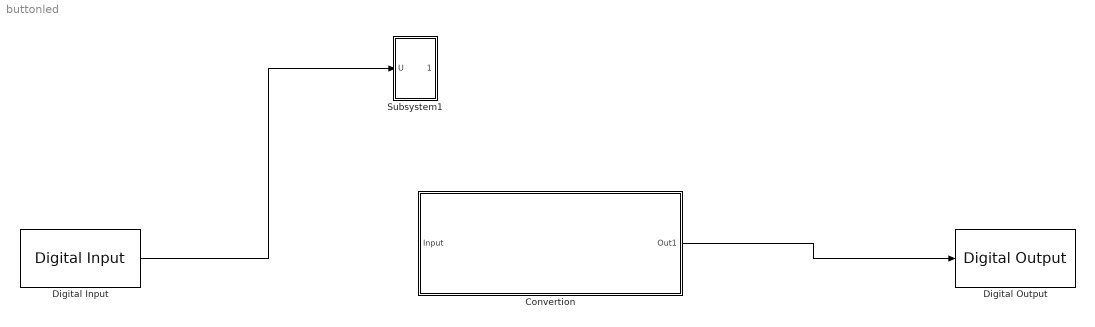
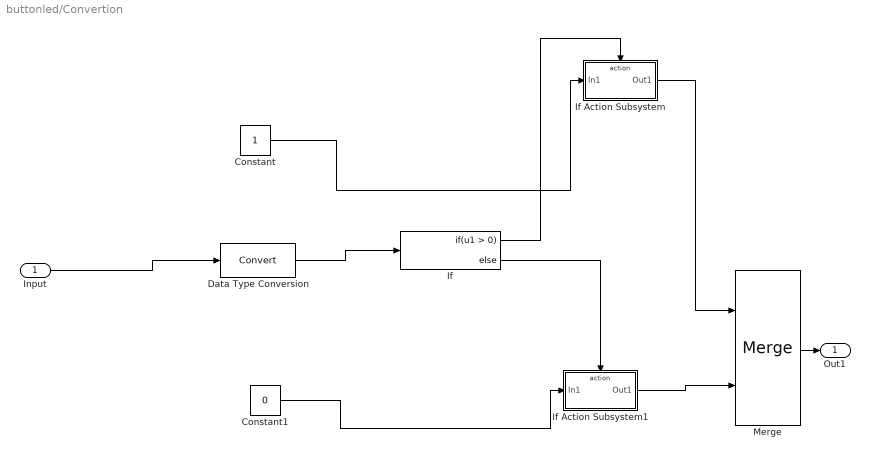
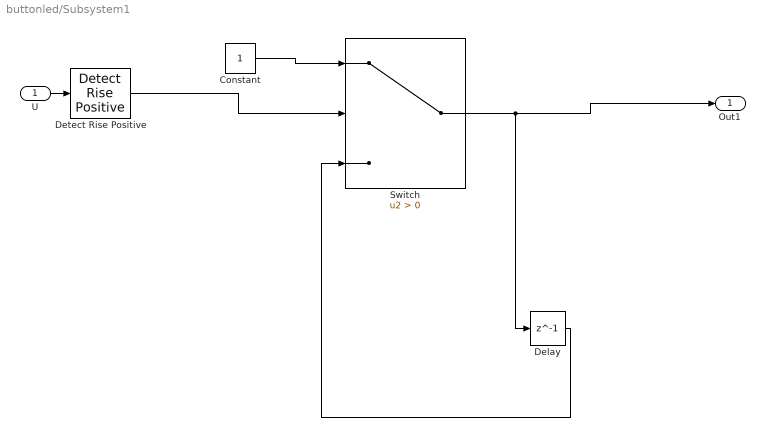
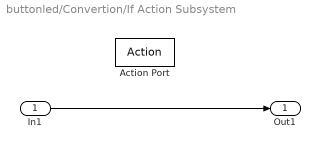
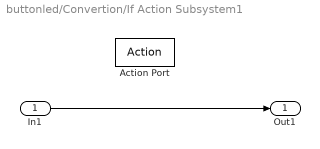
/*
 * File: buttonled.c
 *
 * Code generated for Simulink model 'buttonled'.
 *
 * Model version                  : 1.6
 * Simulink Coder version         : 9.3 (R2020a) 18-Nov-2019
 * C/C++ source code generated on : Tue Oct 24 12:13:12 2023
 *
 * Target selection: ert.tlc
 * Embedded hardware selection: Atmel->AVR
 * Code generation objectives: Unspecified
 * Validation result: Not run
 */

#include "buttonled.h"
#include "buttonled_private.h"

/* Block states (default storage) */
DW_buttonled_T buttonled_DW;

/* Real-time model */
RT_MODEL_buttonled_T buttonled_M_;
RT_MODEL_buttonled_T *const buttonled_M = &buttonled_M_;

/* Forward declaration for local functions */
static void matlabCodegenHandle_matlabCod_l(codertarget_arduinobase_blo_l_T *obj);
static void matlabCodegenHandle_matlabCodeg(codertarget_arduinobase_block_T *obj);
static void rate_monotonic_scheduler(void);

/*
 * Set which subrates need to run this base step (base rate always runs).
 * This function must be called prior to calling the model step function
 * in order to "remember" which rates need to run this base step.  The
 * buffering of events allows for overlapping preemption.
 */
void buttonled_SetEventsForThisBaseStep(boolean_T *eventFlags)
{
  /* Task runs when its counter is zero, computed via rtmStepTask macro */
  eventFlags[1] = ((boolean_T)rtmStepTask(buttonled_M, 1));
}

/*
 *   This function updates active task flag for each subrate
 * and rate transition flags for tasks that exchange data.
 * The function assumes rate-monotonic multitasking scheduler.
 * The function must be called at model base rate so that
 * the generated code self-manages all its subrates and rate
 * transition flags.
 */
static void rate_monotonic_scheduler(void)
{
  /* Compute which subrates run during the next base time step.  Subrates
   * are an integer multiple of the base rate counter.  Therefore, the subtask
   * counter is reset when it reaches its limit (zero means run).
   */
  (buttonled_M->Timing.TaskCounters.TID[1])++;
  if ((buttonled_M->Timing.TaskCounters.TID[1]) > 9) {/* Sample time: [0.1s, 0.0s] */
    buttonled_M->Timing.TaskCounters.TID[1] = 0;
  }
}

real_T rt_roundd_snf(real_T u)
{
  real_T y;
  if (fabs(u) < 4.503599627370496E+15) {
    if (u >= 0.5) {
      y = floor(u + 0.5);
    } else if (u > -0.5) {
      y = u * 0.0;
    } else {
      y = ceil(u - 0.5);
    }
  } else {
    y = u;
  }

  return y;
}

static void matlabCodegenHandle_matlabCod_l(codertarget_arduinobase_blo_l_T *obj)
{
  if (!obj->matlabCodegenIsDeleted) {
    obj->matlabCodegenIsDeleted = true;
  }
}

static void matlabCodegenHandle_matlabCodeg(codertarget_arduinobase_block_T *obj)
{
  if (!obj->matlabCodegenIsDeleted) {
    obj->matlabCodegenIsDeleted = true;
  }
}

/* Model step function for TID0 */
void buttonled_step0(void)             /* Sample time: [0.01s, 0.0s] */
{
  {                                    /* Sample time: [0.01s, 0.0s] */
    rate_monotonic_scheduler();
  }
}

/* Model step function for TID1 */
void buttonled_step1(void)             /* Sample time: [0.1s, 0.0s] */
{
  boolean_T rtb_Compare;
  real_T tmp;
  uint8_T tmp_0;

  /* MATLABSystem: '<Root>/Digital Input' */
  if (buttonled_DW.obj.SampleTime != buttonled_P.DigitalInput_SampleTime) {
    buttonled_DW.obj.SampleTime = buttonled_P.DigitalInput_SampleTime;
  }

  rtb_Compare = readDigitalPin(9);

  /* RelationalOperator: '<S6>/Compare' incorporates:
   *  Constant: '<S6>/Constant'
   *  MATLABSystem: '<Root>/Digital Input'
   */
  rtb_Compare = ((int16_T)rtb_Compare > (int16_T)buttonled_P.Constant_Value_j);

  /* Switch: '<S2>/Switch' incorporates:
   *  Delay: '<S2>/Delay'
   *  Logic: '<S2>/NOT'
   *  RelationalOperator: '<S5>/FixPt Relational Operator'
   *  UnitDelay: '<S5>/Delay Input1'
   *
   * Block description for '<S5>/Delay Input1':
   *
   *  Store in Global RAM
   */
  if ((int16_T)rtb_Compare > (int16_T)buttonled_DW.DelayInput1_DSTATE) {
    buttonled_DW.Delay_DSTATE = !buttonled_DW.Delay_DSTATE;
  }

  /* End of Switch: '<S2>/Switch' */

  /* If: '<S1>/If' incorporates:
   *  Constant: '<S1>/Constant'
   *  Constant: '<S1>/Constant1'
   *  DataTypeConversion: '<S1>/Data Type Conversion'
   *  Delay: '<S2>/Delay'
   */
  if (buttonled_DW.Delay_DSTATE) {
    tmp = buttonled_P.Constant_Value;
  } else {
    tmp = buttonled_P.Constant1_Value;
  }

  /* End of If: '<S1>/If' */

  /* MATLABSystem: '<Root>/Digital Output' */
  tmp = rt_roundd_snf(tmp);
  if (tmp < 256.0) {
    if (tmp >= 0.0) {
      tmp_0 = (uint8_T)tmp;
    } else {
      tmp_0 = 0U;
    }
  } else {
    tmp_0 = MAX_uint8_T;
  }

  writeDigitalPin(4, tmp_0);

  /* End of MATLABSystem: '<Root>/Digital Output' */

  /* Update for UnitDelay: '<S5>/Delay Input1'
   *
   * Block description for '<S5>/Delay Input1':
   *
   *  Store in Global RAM
   */
  buttonled_DW.DelayInput1_DSTATE = rtb_Compare;
}
